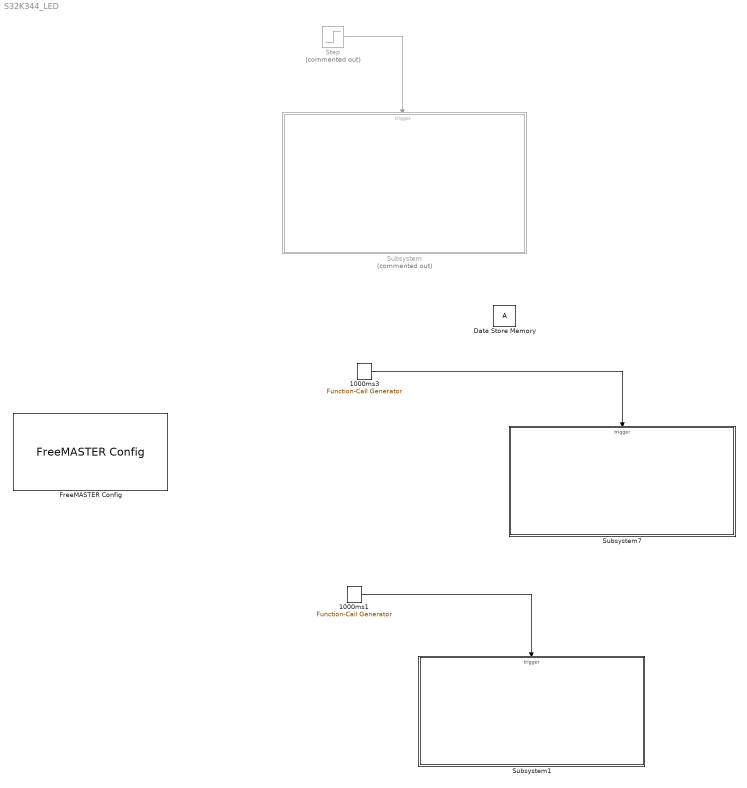
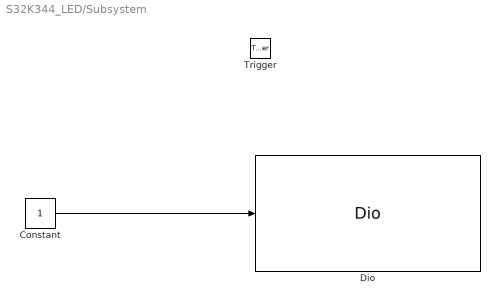
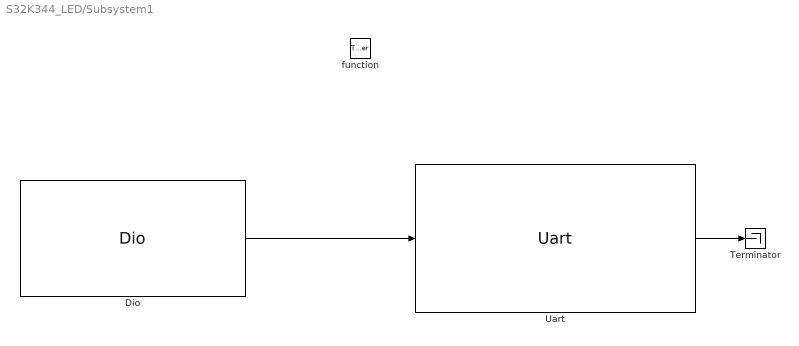
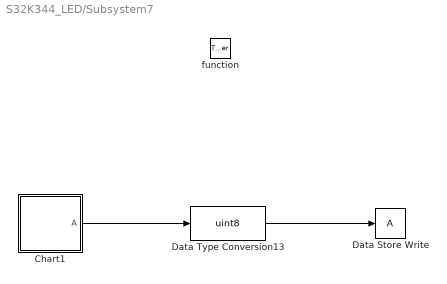
== stateflow chart S32K344_LED/Subsystem7/Chart1 ==
  state A
  state A1
  (default) -> A
  A -> A1
  A1 -> A
  data: A output boolean [0..1]

/*
 * File: S32K344_LED.c
 *
 * Code generated for Simulink model 'S32K344_LED'.
 *
 * Model version                   : 1.4
 * Simulink Coder version          : 23.2 (R2023b) 01-Aug-2023
 * MBDT for S32K3xx Series Version :  Version 1.5.0 (R2021a-R2024a) 08-Jun-2024
 * C/C++ source code generated on  : Tue Jan 21 23:00:20 2025
 *
 * Target selection: ert.tlc
 * Embedded hardware selection: ARM Compatible->ARM Cortex
 * Code generation objectives: Unspecified
 * Validation result: Not run
 */

#include "S32K344_LED.h"
#include "rtwtypes.h"
#include "zero_crossing_types.h"

/* Named constants for Chart: '<S2>/Chart1' */
#define S32K344_LED_IN_A               ((uint8_T)1U)
#define S32K344_LED_IN_A1              ((uint8_T)2U)

/* Block states (default storage) */
DW_S32K344_LED_T S32K344_LED_DW;

/* Previous zero-crossings (trigger) states */
PrevZCX_S32K344_LED_T S32K344_LED_PrevZCX;

/* Real-time model */
static RT_MODEL_S32K344_LED_T S32K344_LED_M_;
RT_MODEL_S32K344_LED_T *const S32K344_LED_M = &S32K344_LED_M_;
static void init_freemaster_lpuart(void)
{
  LPUART_Type * const uart_base = Lpuart_apBases[6];
  Lpuart_Uart_Ip_Hw_Init(uart_base);
  LPUART_Uart_SetBaudRate(6, 115200U);

  /* Set 8 bit counts per char */
  Lpuart_Uart_Ip_SetBitCountPerChar(uart_base, LPUART_UART_IP_8_BITS_PER_CHAR,
    FALSE);

  /* Set no parity mode */
  Lpuart_Uart_Ip_SetParityMode(uart_base, LPUART_UART_IP_PARITY_DISABLED);

  /* One stop bit */
  Lpuart_Uart_Ip_SetStopBitCount(uart_base, LPUART_UART_IP_ONE_STOP_BIT);
  sys_disableIsrSource(Lpuart_RxTxIrqId[6]);
  sys_registerIsrHandler(Lpuart_RxTxIrqId[6], (uint32) &FMSTR_SerialIsr);
  sys_enableIsrSource(Lpuart_RxTxIrqId[6], 5U);
}

/* Model step function */
void S32K344_LED_step(void)
{
  real_T tmp;
  ZCEventType zcEvent;

  /* S-Function (fcgen): '<Root>/1000ms3' incorporates:
   *  SubSystem: '<Root>/Subsystem7'
   */
  /* Chart: '<S2>/Chart1' */
  if (S32K344_LED_DW.is_active_c33_S32K344_LED == 0U) {
    S32K344_LED_DW.is_active_c33_S32K344_LED = 1U;
    S32K344_LED_DW.is_c33_S32K344_LED = S32K344_LED_IN_A;
  } else if (S32K344_LED_DW.is_c33_S32K344_LED == S32K344_LED_IN_A) {
    S32K344_LED_DW.is_c33_S32K344_LED = S32K344_LED_IN_A1;
  } else {
    /* case IN_A1: */
    S32K344_LED_DW.is_c33_S32K344_LED = S32K344_LED_IN_A;
  }

  /* End of Chart: '<S2>/Chart1' */
  /* End of Outputs for S-Function (fcgen): '<Root>/1000ms3' */

  /* Step: '<Root>/Step' */
  if (((S32K344_LED_M->Timing.clockTick0) * 1.0) < S32K344_LED_P.Step_Time) {
    tmp = S32K344_LED_P.Step_Y0;
  } else {
    tmp = S32K344_LED_P.Step_YFinal;
  }

  /* Outputs for Triggered SubSystem: '<Root>/Subsystem' incorporates:
   *  TriggerPort: '<S1>/Trigger'
   */
  zcEvent = rt_ZCFcn(RISING_ZERO_CROSSING,
                     &S32K344_LED_PrevZCX.Subsystem_Trig_ZCE,
                     (tmp));

  /* End of Step: '<Root>/Step' */
  if (zcEvent != NO_ZCEVENT) {
    /* S-Function (s32k3_dio): '<S1>/Dio' incorporates:
     *  Constant: '<S1>/Constant'
     */
    Dio_WriteChannel(DioConf_DioChannel_PTC30, S32K344_LED_P.Constant_Value);
  }

  /* End of Outputs for SubSystem: '<Root>/Subsystem' */

  /* Update absolute time for base rate */
  /* The "clockTick0" counts the number of times the code of this task has
   * been executed. The resolution of this integer timer is 1.0, which is the step size
   * of the task. Size of "clockTick0" ensures timer will not overflow during the
   * application lifespan selected.
   */
  S32K344_LED_M->Timing.clockTick0++;
}
